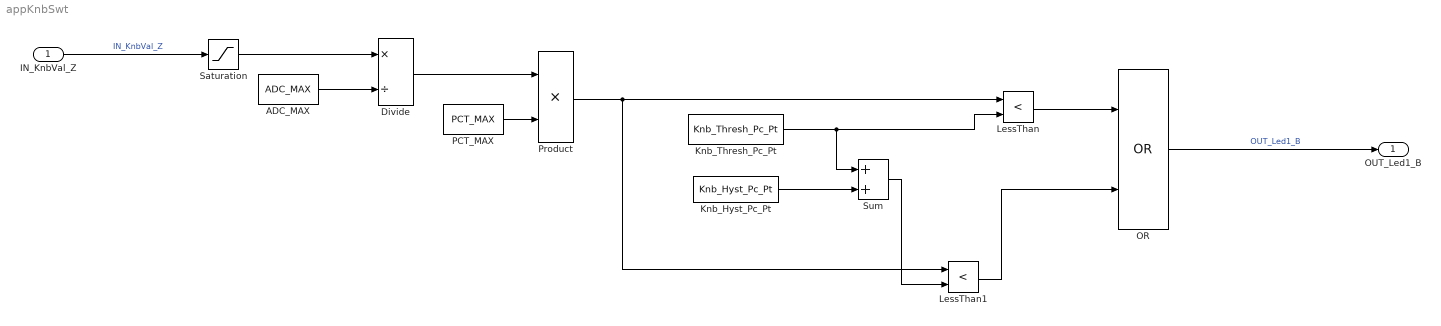
/*
 * File: appKnbSwt.c
 *
 * Code generated for Simulink model 'appKnbSwt'.
 *
 * Model version                  : 1.12
 * Simulink Coder version         : 25.2 (R2025b) 28-Jul-2025
 * C/C++ source code generated on : Sun Jul  5 14:58:12 2026
 *
 * Target selection: ert.tlc
 * Embedded hardware selection: Atmel->AVR (8-bit)
 * Code generation objectives:
 *    1. RAM efficiency
 *    2. Execution efficiency
 * Validation result: Not run
 */

#include "appKnbSwt.h"
#include "rtwtypes.h"
#include "appKnbSwt_Intfc.h"
#include "appKnbSwt_Param.h"
#ifndef UCHAR_MAX
#include <limits.h>
#endif

#if ( UCHAR_MAX != (0xFFU) ) || ( SCHAR_MAX != (0x7F) )
#error Code was generated for compiler with different sized uchar/char. \
Consider adjusting Test hardware word size settings on the \
Hardware Implementation pane to match your compiler word sizes as \
defined in limits.h of the compiler. Alternatively, you can \
select the Test hardware is the same as production hardware option and \
select the Enable portable word sizes option on the Code Generation > \
Verification pane for ERT based targets, which will disable the \
preprocessor word size checks.
#endif

#if ( USHRT_MAX != (0xFFFFU) ) || ( SHRT_MAX != (0x7FFF) )
#error Code was generated for compiler with different sized ushort/short. \
Consider adjusting Test hardware word size settings on the \
Hardware Implementation pane to match your compiler word sizes as \
defined in limits.h of the compiler. Alternatively, you can \
select the Test hardware is the same as production hardware option and \
select the Enable portable word sizes option on the Code Generation > \
Verification pane for ERT based targets, which will disable the \
preprocessor word size checks.
#endif

#if ( UINT_MAX != (0xFFFFU) ) || ( INT_MAX != (0x7FFF) )
#error Code was generated for compiler with different sized uint/int. \
Consider adjusting Test hardware word size settings on the \
Hardware Implementation pane to match your compiler word sizes as \
defined in limits.h of the compiler. Alternatively, you can \
select the Test hardware is the same as production hardware option and \
select the Enable portable word sizes option on the Code Generation > \
Verification pane for ERT based targets, which will disable the \
preprocessor word size checks.
#endif

#if ( ULONG_MAX != (0xFFFFFFFFUL) ) || ( LONG_MAX != (0x7FFFFFFFL) )
#error Code was generated for compiler with different sized ulong/long. \
Consider adjusting Test hardware word size settings on the \
Hardware Implementation pane to match your compiler word sizes as \
defined in limits.h of the compiler. Alternatively, you can \
select the Test hardware is the same as production hardware option and \
select the Enable portable word sizes option on the Code Generation > \
Verification pane for ERT based targets, which will disable the \
preprocessor word size checks.
#endif

/* Real-time model */
static RT_MODEL rtM_;
RT_MODEL *const rtM = &rtM_;

/* Model step function */
void appKnbSwt_step(void)
{
  uint32_T tmp;
  uint16_T rtb_Product;
  uint16_T tmp_0;

  /* Saturate: '<Root>/Saturation' incorporates:
   *  Inport: '<Root>/IN_KnbVal_Z'
   *  Product: '<Root>/Divide'
   */
  if (IN_KnbVal_Z <= 1023U) {
    tmp_0 = IN_KnbVal_Z;
  } else {
    tmp_0 = 1023U;
  }

  /* Product: '<Root>/Divide' incorporates:
   *  Constant: '<Root>/ADC_MAX'
   *  Saturate: '<Root>/Saturation'
   */
  tmp = tmp_0 * 1023UL / ADC_MAX;
  if (tmp > 65535UL) {
    tmp = 65535UL;
  }

  /* Product: '<Root>/Product' incorporates:
   *  Constant: '<Root>/PCT_MAX'
   *  Product: '<Root>/Divide'
   */
  rtb_Product = (uint16_T)(tmp * ((uint8_T)PCT_MAX) / 1023UL);

  /* Sum: '<Root>/Sum' incorporates:
   *  Constant: '<Root>/Knb_Hyst_Pc_Pt'
   *  Constant: '<Root>/Knb_Thresh_Pc_Pt'
   */
  tmp_0 = (uint16_T)Knb_Thresh_Pc_Pt + Knb_Hyst_Pc_Pt;
  if (tmp_0 > 255U) {
    tmp_0 = 255U;
  }

  /* Logic: '<Root>/OR' incorporates:
   *  Constant: '<Root>/Knb_Thresh_Pc_Pt'
   *  RelationalOperator: '<Root>/LessThan'
   *  RelationalOperator: '<Root>/LessThan1'
   *  Sum: '<Root>/Sum'
   */
  OUT_Led1_B = ((rtb_Product < Knb_Thresh_Pc_Pt) || (rtb_Product < tmp_0));
}
